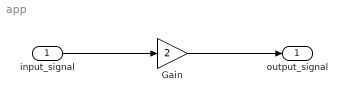
/*
 * Academic License - for use in teaching, academic research, and meeting
 * course requirements at degree granting institutions only.  Not for
 * government, commercial, or other organizational use.
 *
 * File: app.c
 *
 * Code generated for Simulink model 'app'.
 *
 * Model version                  : 1.6
 * Simulink Coder version         : 23.2 (R2023b) 01-Aug-2023
 * C/C++ source code generated on : Tue Mar 17 23:15:49 2026
 *
 * Target selection: ert.tlc
 * Embedded hardware selection: ARM Compatible->ARM Cortex-M
 * Code generation objectives: Unspecified
 * Validation result: Not run
 */

#include "app.h"
#include "rtwtypes.h"

/* Model step function */
void app_step(NCU_APP_RT_MODEL_app_t *const NCU_APP_app_M, real32_T
              NCU_APP_app_U_input_signal, real32_T *NCU_APP_app_Y_output_signal)
{
  /* Outport: '<Root>/output_signal' incorporates:
   *  Gain: '<Root>/Gain'
   *  Inport: '<Root>/input_signal'
   */
  *NCU_APP_app_Y_output_signal = 2.0F * NCU_APP_app_U_input_signal;
  UNUSED_PARAMETER(NCU_APP_app_M);
}
